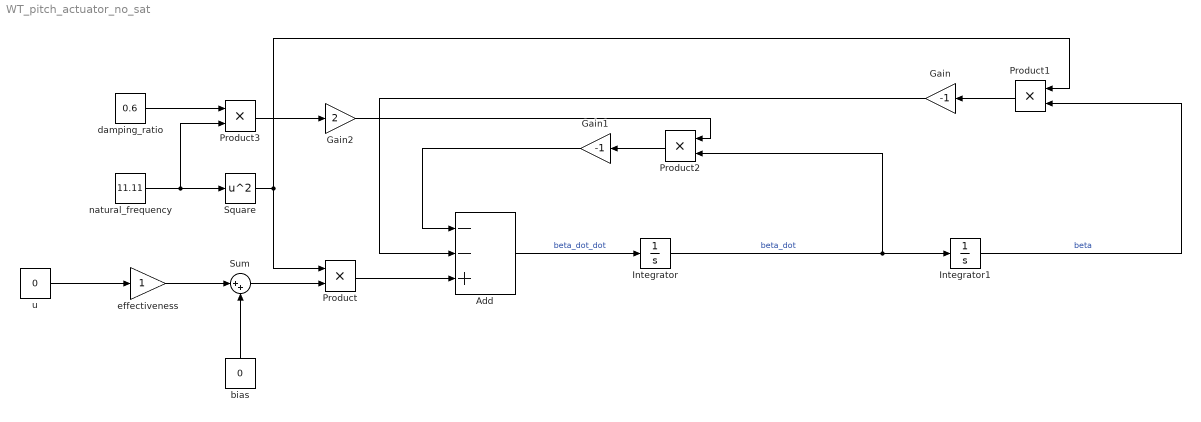
/*
 * WT_pitch_actuator_no_sat.c
 *
 * Academic License - for use in teaching, academic research, and meeting
 * course requirements at degree granting institutions only.  Not for
 * government, commercial, or other organizational use.
 *
 * Code generation for model "WT_pitch_actuator_no_sat".
 *
 * Model version              : 1.3
 * Simulink Coder version : 24.1 (R2024a) 19-Nov-2023
 * C source code generated on : Wed Nov 27 16:25:59 2024
 *
 * Target selection: grt.tlc
 * Note: GRT includes extra infrastructure and instrumentation for prototyping
 * Embedded hardware selection: Intel->x86-64 (Windows64)
 * Code generation objectives: Unspecified
 * Validation result: Not run
 */

#include "WT_pitch_actuator_no_sat.h"
#include "WT_pitch_actuator_no_sat_private.h"
#include "rt_logging_mmi.h"
#include "WT_pitch_actuator_no_sat_capi.h"

/* Block signals (default storage) */
B_WT_pitch_actuator_no_sat_T WT_pitch_actuator_no_sat_B;

/* Continuous states */
X_WT_pitch_actuator_no_sat_T WT_pitch_actuator_no_sat_X;

/* Disabled State Vector */
XDis_WT_pitch_actuator_no_sat_T WT_pitch_actuator_no_sat_XDis;

/* Real-time model */
static RT_MODEL_WT_pitch_actuator_no_T WT_pitch_actuator_no_sat_M_;
RT_MODEL_WT_pitch_actuator_no_T *const WT_pitch_actuator_no_sat_M =
  &WT_pitch_actuator_no_sat_M_;

/*
 * This function updates continuous states using the ODE3 fixed-step
 * solver algorithm
 */
static void rt_ertODEUpdateContinuousStates(RTWSolverInfo *si )
{
  /* Solver Matrices */
  static const real_T rt_ODE3_A[3] = {
    1.0/2.0, 3.0/4.0, 1.0
  };

  static const real_T rt_ODE3_B[3][3] = {
    { 1.0/2.0, 0.0, 0.0 },

    { 0.0, 3.0/4.0, 0.0 },

    { 2.0/9.0, 1.0/3.0, 4.0/9.0 }
  };

  time_T t = rtsiGetT(si);
  time_T tnew = rtsiGetSolverStopTime(si);
  time_T h = rtsiGetStepSize(si);
  real_T *x = rtsiGetContStates(si);
  ODE3_IntgData *id = (ODE3_IntgData *)rtsiGetSolverData(si);
  real_T *y = id->y;
  real_T *f0 = id->f[0];
  real_T *f1 = id->f[1];
  real_T *f2 = id->f[2];
  real_T hB[3];
  int_T i;
  int_T nXc = 2;
  rtsiSetSimTimeStep(si,MINOR_TIME_STEP);

  /* Save the state values at time t in y, we'll use x as ynew. */
  (void) memcpy(y, x,
                (uint_T)nXc*sizeof(real_T));

  /* Assumes that rtsiSetT and ModelOutputs are up-to-date */
  /* f0 = f(t,y) */
  rtsiSetdX(si, f0);
  WT_pitch_actuator_no_sat_derivatives();

  /* f(:,2) = feval(odefile, t + hA(1), y + f*hB(:,1), args(:)(*)); */
  hB[0] = h * rt_ODE3_B[0][0];
  for (i = 0; i < nXc; i++) {
    x[i] = y[i] + (f0[i]*hB[0]);
  }

  rtsiSetT(si, t + h*rt_ODE3_A[0]);
  rtsiSetdX(si, f1);
  WT_pitch_actuator_no_sat_step();
  WT_pitch_actuator_no_sat_derivatives();

  /* f(:,3) = feval(odefile, t + hA(2), y + f*hB(:,2), args(:)(*)); */
  for (i = 0; i <= 1; i++) {
    hB[i] = h * rt_ODE3_B[1][i];
  }

  for (i = 0; i < nXc; i++) {
    x[i] = y[i] + (f0[i]*hB[0] + f1[i]*hB[1]);
  }

  rtsiSetT(si, t + h*rt_ODE3_A[1]);
  rtsiSetdX(si, f2);
  WT_pitch_actuator_no_sat_step();
  WT_pitch_actuator_no_sat_derivatives();

  /* tnew = t + hA(3);
     ynew = y + f*hB(:,3); */
  for (i = 0; i <= 2; i++) {
    hB[i] = h * rt_ODE3_B[2][i];
  }

  for (i = 0; i < nXc; i++) {
    x[i] = y[i] + (f0[i]*hB[0] + f1[i]*hB[1] + f2[i]*hB[2]);
  }

  rtsiSetT(si, tnew);
  rtsiSetSimTimeStep(si,MAJOR_TIME_STEP);
}

/* Model step function */
void WT_pitch_actuator_no_sat_step(void)
{
  if (rtmIsMajorTimeStep(WT_pitch_actuator_no_sat_M)) {
    /* set solver stop time */
    if (!(WT_pitch_actuator_no_sat_M->Timing.clockTick0+1)) {
      rtsiSetSolverStopTime(&WT_pitch_actuator_no_sat_M->solverInfo,
                            ((WT_pitch_actuator_no_sat_M->Timing.clockTickH0 + 1)
        * WT_pitch_actuator_no_sat_M->Timing.stepSize0 * 4294967296.0));
    } else {
      rtsiSetSolverStopTime(&WT_pitch_actuator_no_sat_M->solverInfo,
                            ((WT_pitch_actuator_no_sat_M->Timing.clockTick0 + 1)
        * WT_pitch_actuator_no_sat_M->Timing.stepSize0 +
        WT_pitch_actuator_no_sat_M->Timing.clockTickH0 *
        WT_pitch_actuator_no_sat_M->Timing.stepSize0 * 4294967296.0));
    }
  }                                    /* end MajorTimeStep */

  /* Update absolute time of base rate at minor time step */
  if (rtmIsMinorTimeStep(WT_pitch_actuator_no_sat_M)) {
    WT_pitch_actuator_no_sat_M->Timing.t[0] = rtsiGetT
      (&WT_pitch_actuator_no_sat_M->solverInfo);
  }

  if (rtmIsMajorTimeStep(WT_pitch_actuator_no_sat_M)) {
    /* Gain: '<Root>/Gain2' incorporates:
     *  Constant: '<Root>/damping_ratio'
     *  Constant: '<Root>/natural_frequency'
     *  Product: '<Root>/Product3'
     */
    WT_pitch_actuator_no_sat_B.Gain2 =
      WT_pitch_actuator_no_sat_P.damping_ratio_Value *
      WT_pitch_actuator_no_sat_P.natural_frequency_Value *
      WT_pitch_actuator_no_sat_P.Gain2_Gain;

    /* Math: '<Root>/Square' incorporates:
     *  Constant: '<Root>/natural_frequency'
     */
    WT_pitch_actuator_no_sat_B.Square =
      WT_pitch_actuator_no_sat_P.natural_frequency_Value *
      WT_pitch_actuator_no_sat_P.natural_frequency_Value;

    /* Product: '<Root>/Product' incorporates:
     *  Constant: '<Root>/bias'
     *  Constant: '<Root>/u'
     *  Gain: '<Root>/effectiveness'
     *  Sum: '<Root>/Sum'
     */
    WT_pitch_actuator_no_sat_B.Product =
      (WT_pitch_actuator_no_sat_P.effectiveness_Gain *
       WT_pitch_actuator_no_sat_P.u_Value +
       WT_pitch_actuator_no_sat_P.bias_Value) *
      WT_pitch_actuator_no_sat_B.Square;
  }

  /* Integrator: '<Root>/Integrator' */
  WT_pitch_actuator_no_sat_B.beta_dot =
    WT_pitch_actuator_no_sat_X.Integrator_CSTATE;

  /* Sum: '<Root>/Add' incorporates:
   *  Gain: '<Root>/Gain'
   *  Gain: '<Root>/Gain1'
   *  Integrator: '<Root>/Integrator1'
   *  Product: '<Root>/Product1'
   *  Product: '<Root>/Product2'
   */
  WT_pitch_actuator_no_sat_B.beta_dot_dot = (WT_pitch_actuator_no_sat_B.Product
    - WT_pitch_actuator_no_sat_B.Gain2 * WT_pitch_actuator_no_sat_B.beta_dot *
    WT_pitch_actuator_no_sat_P.Gain1_Gain) - WT_pitch_actuator_no_sat_B.Square *
    WT_pitch_actuator_no_sat_X.Integrator1_CSTATE *
    WT_pitch_actuator_no_sat_P.Gain_Gain;
  if (rtmIsMajorTimeStep(WT_pitch_actuator_no_sat_M)) {
    /* Matfile logging */
    rt_UpdateTXYLogVars(WT_pitch_actuator_no_sat_M->rtwLogInfo,
                        (WT_pitch_actuator_no_sat_M->Timing.t));
  }                                    /* end MajorTimeStep */

  if (rtmIsMajorTimeStep(WT_pitch_actuator_no_sat_M)) {
    /* signal main to stop simulation */
    {                                  /* Sample time: [0.0s, 0.0s] */
      if ((rtmGetTFinal(WT_pitch_actuator_no_sat_M)!=-1) &&
          !((rtmGetTFinal(WT_pitch_actuator_no_sat_M)-
             (((WT_pitch_actuator_no_sat_M->Timing.clockTick1+
                WT_pitch_actuator_no_sat_M->Timing.clockTickH1* 4294967296.0)) *
              0.001)) > (((WT_pitch_actuator_no_sat_M->Timing.clockTick1+
                           WT_pitch_actuator_no_sat_M->Timing.clockTickH1*
                           4294967296.0)) * 0.001) * (DBL_EPSILON))) {
        rtmSetErrorStatus(WT_pitch_actuator_no_sat_M, "Simulation finished");
      }
    }

    rt_ertODEUpdateContinuousStates(&WT_pitch_actuator_no_sat_M->solverInfo);

    /* Update absolute time for base rate */
    /* The "clockTick0" counts the number of times the code of this task has
     * been executed. The absolute time is the multiplication of "clockTick0"
     * and "Timing.stepSize0". Size of "clockTick0" ensures timer will not
     * overflow during the application lifespan selected.
     * Timer of this task consists of two 32 bit unsigned integers.
     * The two integers represent the low bits Timing.clockTick0 and the high bits
     * Timing.clockTickH0. When the low bit overflows to 0, the high bits increment.
     */
    if (!(++WT_pitch_actuator_no_sat_M->Timing.clockTick0)) {
      ++WT_pitch_actuator_no_sat_M->Timing.clockTickH0;
    }

    WT_pitch_actuator_no_sat_M->Timing.t[0] = rtsiGetSolverStopTime
      (&WT_pitch_actuator_no_sat_M->solverInfo);

    {
      /* Update absolute timer for sample time: [0.001s, 0.0s] */
      /* The "clockTick1" counts the number of times the code of this task has
       * been executed. The resolution of this integer timer is 0.001, which is the step size
       * of the task. Size of "clockTick1" ensures timer will not overflow during the
       * application lifespan selected.
       * Timer of this task consists of two 32 bit unsigned integers.
       * The two integers represent the low bits Timing.clockTick1 and the high bits
       * Timing.clockTickH1. When the low bit overflows to 0, the high bits increment.
       */
      WT_pitch_actuator_no_sat_M->Timing.clockTick1++;
      if (!WT_pitch_actuator_no_sat_M->Timing.clockTick1) {
        WT_pitch_actuator_no_sat_M->Timing.clockTickH1++;
      }
    }
  }                                    /* end MajorTimeStep */
}
